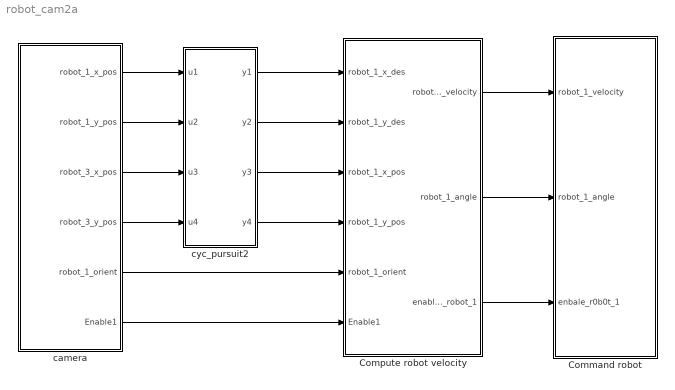
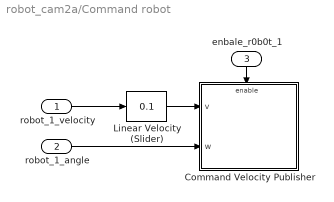
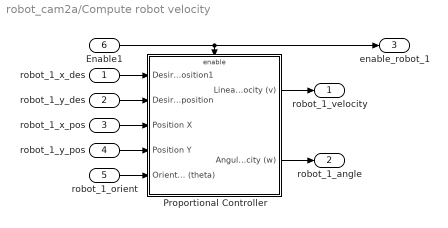
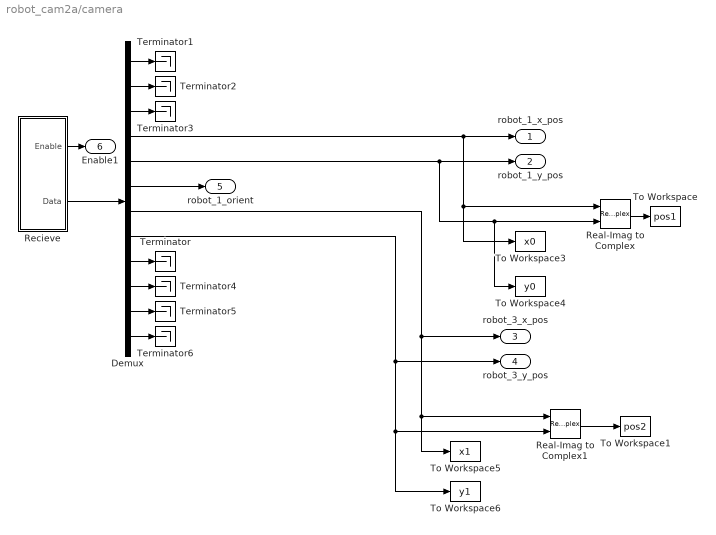
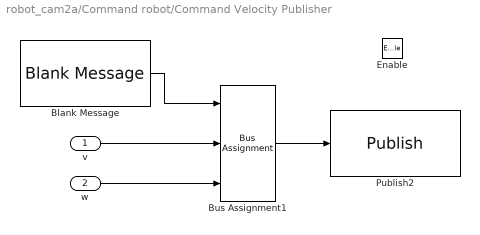
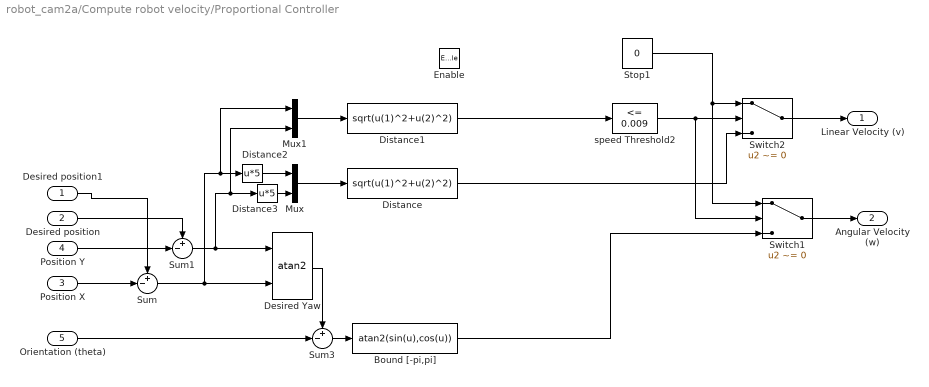
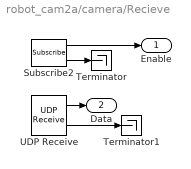
== matlab function robot_cam2a/cyc_pursuit2 ==
function [y1, y2, y3, y4] = fcn(u1, u2, u3, u4)
%#codegen

y1 = ((1-0.2)*u1+(u3*0.2)-(0.75*0.2));
y2 = ((1-0.2)*u2+(0.2*u4)-(1.2990*0.2));
y3=u1;
y4=u2;




%         y1 = ((1-0.2)*u1+(u3*0.2)+(1.5451*0.2));
%         y2 = ((1-0.2)*u2+(0.2*u4)+(4.7553*0.2));
%         y3 = ((1-0.2)*u3+(u5*0.2)-(4.0451*0.2));
%         y4 = ((1-0.2)*u4+(u6*0.2)+(2.9389*0.2));
%         y5 = ((1-0.2)*u5+(u7*0.2)-(4.0451*0.2));
%         y6 = ((1-0.2)*u6+(u8*0.2)-(2.9389*0.2));
%         y7 = ((1-0.2)*u7+(u9*0.2)+(1.5451*0.2));
%         y8 = ((1-0.2)*u8+(u10*0.2)-(4.7553*0.2));
%         y9 = ((1-0.2)*u9+(u1*0.2)+(5*0.2));
%         y10 = ((1-0.2)*u10+(u2*0.2)+(0*0.2));

//
// Academic License - for use in teaching, academic research, and meeting
// course requirements at degree granting institutions only.  Not for
// government, commercial, or other organizational use.
//
// File: robot_cam2a.cpp
//
// Code generated for Simulink model 'robot_cam2a'.
//
// Model version                  : 1.28
// Simulink Coder version         : 8.11 (R2016b) 25-Aug-2016
// C/C++ source code generated on : Tue Feb  7 18:30:34 2017
//
// Target selection: ert.tlc
// Embedded hardware selection: Generic->Unspecified (assume 32-bit Generic)
// Code generation objectives: Unspecified
// Validation result: Not run
//
#include "robot_cam2a.h"
#include "robot_cam2a_private.h"
#define robot_cam2a_MessageQueueLen    (105)
#define robot_cam2a_MessageQueueLen_e  (1)

real_T rt_powd_snf(real_T u0, real_T u1)
{
  real_T y;
  real_T tmp;
  real_T tmp_0;
  if (rtIsNaN(u0) || rtIsNaN(u1)) {
    y = (rtNaN);
  } else {
    tmp = fabs(u0);
    tmp_0 = fabs(u1);
    if (rtIsInf(u1)) {
      if (tmp == 1.0) {
        y = (rtNaN);
      } else if (tmp > 1.0) {
        if (u1 > 0.0) {
          y = (rtInf);
        } else {
          y = 0.0;
        }
      } else if (u1 > 0.0) {
        y = 0.0;
      } else {
        y = (rtInf);
      }
    } else if (tmp_0 == 0.0) {
      y = 1.0;
    } else if (tmp_0 == 1.0) {
      if (u1 > 0.0) {
        y = u0;
      } else {
        y = 1.0 / u0;
      }
    } else if (u1 == 2.0) {
      y = u0 * u0;
    } else if ((u1 == 0.5) && (u0 >= 0.0)) {
      y = sqrt(u0);
    } else if ((u0 < 0.0) && (u1 > floor(u1))) {
      y = (rtNaN);
    } else {
      y = pow(u0, u1);
    }
  }

  return y;
}

real_T rt_atan2d_snf(real_T u0, real_T u1)
{
  real_T y;
  int32_T u0_0;
  int32_T u1_0;
  if (rtIsNaN(u0) || rtIsNaN(u1)) {
    y = (rtNaN);
  } else if (rtIsInf(u0) && rtIsInf(u1)) {
    if (u0 > 0.0) {
      u0_0 = 1;
    } else {
      u0_0 = -1;
    }

    if (u1 > 0.0) {
      u1_0 = 1;
    } else {
      u1_0 = -1;
    }

    y = atan2((real_T)u0_0, (real_T)u1_0);
  } else if (u1 == 0.0) {
    if (u0 > 0.0) {
      y = RT_PI / 2.0;
    } else if (u0 < 0.0) {
      y = -(RT_PI / 2.0);
    } else {
      y = 0.0;
    }
  } else {
    y = atan2(u0, u1);
  }

  return y;
}

// Model step function
void robot_0ModelClass::step()
{
  boolean_T varargout_1;
  real_T rtb_Sum1;
  real_T rtb_Sum;
  real_T rtb_Sum3;
  real_T Switch1;

  // Outputs for Atomic SubSystem: '<S11>/Subscribe2'
  // Start for MATLABSystem: '<S12>/SourceBlock' incorporates:
  //   MATLABSystem: '<S12>/SourceBlock'

  // MATLAB Function 'cyc_pursuit2': '<S4>:1'
  // '<S4>:1:4' y1 = ((1-0.2)*u1+(u3*0.2)-(0.75*0.2));
  // '<S4>:1:5' y2 = ((1-0.2)*u2+(0.2*u4)-(1.2990*0.2));
  // '<S4>:1:6' y3=u1;
  // '<S4>:1:7' y4=u2;
  //          y1 = ((1-0.2)*u1+(u3*0.2)+(1.5451*0.2));
  //          y2 = ((1-0.2)*u2+(0.2*u4)+(4.7553*0.2));
  //          y3 = ((1-0.2)*u3+(u5*0.2)-(4.0451*0.2));
  //          y4 = ((1-0.2)*u4+(u6*0.2)+(2.9389*0.2));
  //          y5 = ((1-0.2)*u5+(u7*0.2)-(4.0451*0.2));
  //          y6 = ((1-0.2)*u6+(u8*0.2)-(2.9389*0.2));
  //          y7 = ((1-0.2)*u7+(u9*0.2)+(1.5451*0.2));
  //          y8 = ((1-0.2)*u8+(u10*0.2)-(4.7553*0.2));
  //          y9 = ((1-0.2)*u9+(u1*0.2)+(5*0.2));
  //          y10 = ((1-0.2)*u10+(u2*0.2)+(0*0.2));
  varargout_1 = Sub_robot_cam2a_78.getLatestMessage(&robot_cam2a_B.varargout_2);

  // Outputs for Enabled SubSystem: '<S1>/Command Velocity Publisher' incorporates:
  //   EnablePort: '<S5>/Enable'

  // Outputs for Enabled SubSystem: '<S2>/Proportional Controller' incorporates:
  //   EnablePort: '<S9>/Enable'

  if (varargout_1) {
    // Sum: '<S9>/Sum1' incorporates:
    //   MATLAB Function: '<Root>/cyc_pursuit2'

    rtb_Sum1 = ((0.8 * robot_cam2a_B.UDPReceive_o1[4] + 0.2 *
                 robot_cam2a_B.UDPReceive_o1[7]) - 0.2598) -
      robot_cam2a_B.UDPReceive_o1[4];

    // Sum: '<S9>/Sum' incorporates:
    //   MATLAB Function: '<Root>/cyc_pursuit2'

    rtb_Sum = ((0.8 * robot_cam2a_B.UDPReceive_o1[3] +
                robot_cam2a_B.UDPReceive_o1[6] * 0.2) - 0.15000000000000002) -
      robot_cam2a_B.UDPReceive_o1[3];

    // Fcn: '<S9>/Distance1'
    rtb_Sum3 = rt_powd_snf(rtb_Sum, 2.0) + rt_powd_snf(rtb_Sum1, 2.0);
    if (rtb_Sum3 < 0.0) {
      rtb_Sum3 = -sqrt(-rtb_Sum3);
    } else {
      rtb_Sum3 = sqrt(rtb_Sum3);
    }

    // End of Fcn: '<S9>/Distance1'

    // Switch: '<S9>/Switch1' incorporates:
    //   Constant: '<S10>/Constant'
    //   Constant: '<S9>/Stop1'
    //   Fcn: '<S9>/Bound [-pi,pi]'
    //   RelationalOperator: '<S10>/Compare'
    //   Switch: '<S9>/Switch2'

    if (rtb_Sum3 <= robot_cam2a_P.speedThreshold2_const) {
      Switch1 = robot_cam2a_P.Stop1_Value;
      rtb_Sum1 = robot_cam2a_P.Stop1_Value;
    } else {
      // Sum: '<S9>/Sum3' incorporates:
      //   Trigonometry: '<S9>/Desired Yaw'

      rtb_Sum3 = rt_atan2d_snf(rtb_Sum1, rtb_Sum) - robot_cam2a_B.UDPReceive_o1
        [5];
      Switch1 = rt_atan2d_snf(sin(rtb_Sum3), cos(rtb_Sum3));

      // Fcn: '<S9>/Distance3' incorporates:
      //   Fcn: '<S9>/Bound [-pi,pi]'

      rtb_Sum1 *= 5.0;

      // Fcn: '<S9>/Distance2'
      rtb_Sum *= 5.0;

      // Fcn: '<S9>/Distance'
      rtb_Sum3 = rt_powd_snf(rtb_Sum, 2.0) + rt_powd_snf(rtb_Sum1, 2.0);
      if (rtb_Sum3 < 0.0) {
        rtb_Sum1 = -sqrt(-rtb_Sum3);
      } else {
        rtb_Sum1 = sqrt(rtb_Sum3);
      }

      // End of Fcn: '<S9>/Distance'
    }

    // End of Switch: '<S9>/Switch1'

    // BusAssignment: '<S5>/Bus Assignment1' incorporates:
    //   Constant: '<S7>/Constant'
    //   Gain: '<S6>/Slider Gain'

    robot_cam2a_B.BusAssignment1 = robot_cam2a_P.Constant_Value_p;
    robot_cam2a_B.BusAssignment1.Linear.X =
      robot_cam2a_P.LinearVelocitySlider_gain * rtb_Sum1;
    robot_cam2a_B.BusAssignment1.Angular.Z = Switch1;

    // Outputs for Atomic SubSystem: '<S5>/Publish2'
    // Start for MATLABSystem: '<S8>/SinkBlock' incorporates:
    //   MATLABSystem: '<S8>/SinkBlock'

    Pub_robot_cam2a_75.publish(&robot_cam2a_B.BusAssignment1);

    // End of Outputs for SubSystem: '<S5>/Publish2'
  }

  // End of Start for MATLABSystem: '<S12>/SourceBlock'
  // End of Outputs for SubSystem: '<S2>/Proportional Controller'
  // End of Outputs for SubSystem: '<S1>/Command Velocity Publisher'
  // End of Outputs for SubSystem: '<S11>/Subscribe2'
}
